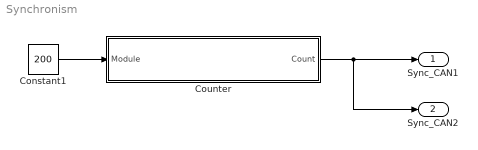
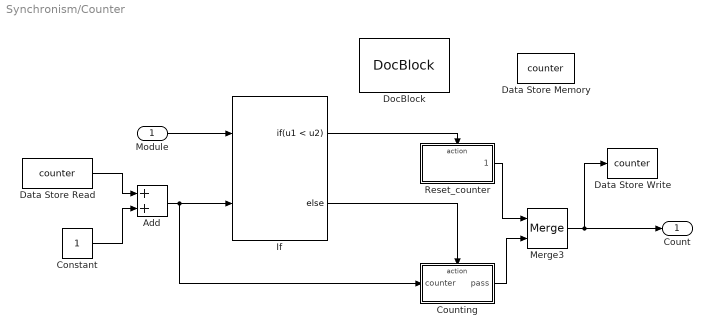
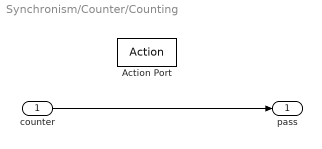
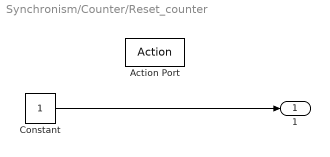
/*
 * Synchronism.c
 *
 * Academic License - for use in teaching, academic research, and meeting
 * course requirements at degree granting institutions only.  Not for
 * government, commercial, or other organizational use.
 *
 * Code generation for model "Synchronism".
 *
 * Model version              : 10.0
 * Simulink Coder version : 9.7 (R2022a) 13-Nov-2021
 * C source code generated on : Fri Mar 29 01:03:43 2024
 *
 * Target selection: irt.tlc
 * Note: GRT includes extra infrastructure and instrumentation for prototyping
 * Embedded hardware selection: Intel->x86-64 (Windows64)
 * Code generation objectives: Unspecified
 * Validation result: Not run
 */

#include "Synchronism.h"
#include "rtwtypes.h"
#include <string.h>
#include "rt_nonfinite.h"

/* Block states (default storage) */
DW_Synchronism_T Synchronism_DW;

/* External outputs (root outports fed by signals with default storage) */
ExtY_Synchronism_T Synchronism_Y;

/* Real-time model */
static RT_MODEL_Synchronism_T Synchronism_M_;
RT_MODEL_Synchronism_T *const Synchronism_M = &Synchronism_M_;

/* Model output function */
static void Synchronism_output(void)
{
  real_T rtb_Add;

  /* Sum: '<S1>/Add' incorporates:
   *  Constant: '<S1>/Constant'
   *  DataStoreRead: '<S1>/Data Store Read'
   */
  rtb_Add = Synchronism_DW.counter + 1.0;

  /* If: '<S1>/If' incorporates:
   *  Constant: '<Root>/Constant1'
   *  Constant: '<S1>/Constant'
   *  DataStoreRead: '<S1>/Data Store Read'
   *  Sum: '<S1>/Add'
   */
  if (Synchronism_DW.counter + 1.0 > 200.0) {
    /* Outputs for IfAction SubSystem: '<S1>/Reset_counter' incorporates:
     *  ActionPort: '<S4>/Action Port'
     */
    /* SignalConversion generated from: '<S4>/1' incorporates:
     *  Constant: '<S4>/Constant'
     */
    rtb_Add = 1.0;

    /* End of Outputs for SubSystem: '<S1>/Reset_counter' */
  }

  /* End of If: '<S1>/If' */

  /* DataStoreWrite: '<S1>/Data Store Write' */
  Synchronism_DW.counter = rtb_Add;

  /* Outport: '<Root>/Sync_CAN1' */
  Synchronism_Y.Sync_CAN1 = rtb_Add;

  /* Outport: '<Root>/Sync_CAN2' */
  Synchronism_Y.Sync_CAN2 = rtb_Add;
}

/* Model update function */
static void Synchronism_update(void)
{
  /* Update absolute time for base rate */
  /* The "clockTick0" counts the number of times the code of this task has
   * been executed. The absolute time is the multiplication of "clockTick0"
   * and "Timing.stepSize0". Size of "clockTick0" ensures timer will not
   * overflow during the application lifespan selected.
   * Timer of this task consists of two 32 bit unsigned integers.
   * The two integers represent the low bits Timing.clockTick0 and the high bits
   * Timing.clockTickH0. When the low bit overflows to 0, the high bits increment.
   */
  if (!(++Synchronism_M->Timing.clockTick0)) {
    ++Synchronism_M->Timing.clockTickH0;
  }

  Synchronism_M->Timing.t[0] = Synchronism_M->Timing.clockTick0 *
    Synchronism_M->Timing.stepSize0 + Synchronism_M->Timing.clockTickH0 *
    Synchronism_M->Timing.stepSize0 * 4294967296.0;
}
